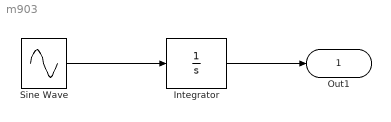
/*
 * m903.c
 * 
 * Real-Time Workshop code generation for Simulink model "m903.mdl".
 *
 * Model Version              : 1.8
 * Real-Time Workshop version : 6.1  (R14SP1)  05-Sep-2004
 * C source code generated on : Sat Apr 02 09:22:49 2005
 */

#include "m903.h"
#include "m903_private.h"

/* Block signals (auto storage) */
BlockIO_m903 m903_B;

/* Continuous states */
ContinuousStates_m903 m903_X;

/* External output (root outports fed by signals with auto storage) */
ExternalOutputs_m903 m903_Y;

/* Real-time model */
rtModel_m903 m903_M_;
rtModel_m903 *m903_M = &m903_M_;

/* This function implements a singletasking scheduler for a system with 2
 * rates.  This function is called by the generated step function, hence the
 * generated code self-manages all its subrates.
 */
static void rate_scheduler(void)
{

  /* Compute which subrates run during the next base time step.  Subrates
   * are an integer multiple of the base rate counter.  Therefore, the subtask
   * counter is reset when it reaches its limit (zero means run).
   */
}

/* This function updates continuous states using the ODE4 fixed-step
 * solver algorithm
 */
static void rt_ertODEUpdateContinuousStates(RTWSolverInfo *si , int_T tid)
{
  time_T t = rtsiGetT(si);
  time_T tnew = rtsiGetSolverStopTime(si);
  time_T h = rtsiGetStepSize(si);
  real_T *x = rtsiGetContStates(si);
  ODE4_IntgData *id = rtsiGetSolverData(si);
  real_T *y = id->y;
  real_T *f0 = id->f[0];
  real_T *f1 = id->f[1];
  real_T *f2 = id->f[2];
  real_T *f3 = id->f[3];
  real_T temp;
  int_T i;

  int_T nXc = 1;

  rtsiSetSimTimeStep(si,MINOR_TIME_STEP);

  /* Save the state values at time t in y, we'll use x as ynew. */
  (void)memcpy(y, x, nXc*sizeof(real_T));

  /* Assumes that rtsiSetT and ModelOutputs are up-to-date */
  /* f0 = f(t,y) */
  rtsiSetdX(si, f0);
  m903_derivatives();

  /* f1 = f(t + (h/2), y + (h/2)*f0) */
  temp = 0.5 * h;
  for (i = 0; i < nXc; i++) x[i] = y[i] + (temp*f0[i]);
  rtsiSetT(si, t + temp);
  rtsiSetdX(si, f1);
  m903_output(0);
  m903_derivatives();

  /* f2 = f(t + (h/2), y + (h/2)*f1) */
  for (i = 0; i < nXc; i++) x[i] = y[i] + (temp*f1[i]);
  rtsiSetdX(si, f2);
  m903_output(0);
  m903_derivatives();

  /* f3 = f(t + h, y + h*f2) */
  for (i = 0; i < nXc; i++) x[i] = y[i] + (h*f2[i]);
  rtsiSetT(si, tnew);
  rtsiSetdX(si, f3);
  m903_output(0);
  m903_derivatives();

  /* tnew = t + h
     ynew = y + (h/6)*(f0 + 2*f1 + 2*f2 + 2*f3) */
  temp = h / 6.0;
  for (i = 0; i < nXc; i++) {
    x[i] = y[i] + temp*(f0[i] + 2.0*f1[i] + 2.0*f2[i] + f3[i]);
  }

  rtsiSetSimTimeStep(si,MAJOR_TIME_STEP);
}

/* Model output function */
void m903_output(int_T tid)
{

  /* local block i/o variables */

  real_T rtb_Integrator;

  /* Update absolute time of base rate at minor time step */
  if (rtmIsMinorTimeStep(m903_M)) {
    m903_M->Timing.t[0] = rtsiGetT(&m903_M->solverInfo);
  }

  if (rtmIsMajorTimeStep(m903_M)) {
    /* set solver stop time */
    rtsiSetSolverStopTime(&m903_M->solverInfo,
     ((m903_M->Timing.clockTick0+1)*m903_M->Timing.stepSize0));
  }                                     /* end MajorTimeStep */

  /* Integrator: '<Root>/Integrator' */
  rtb_Integrator = m903_X.Integrator_CSTATE;

  /* Outport: '<Root>/Out1' */
  m903_Y.Out1 = rtb_Integrator;

  /* Sin: '<Root>/Sine Wave' */
  m903_B.SineWave = m903_P.SineWave_Amp *
    sin(m903_P.SineWave_Freq * m903_M->Timing.t[0] + m903_P.SineWave_Phase) +
    m903_P.SineWave_Bias;
}

/* Model update function */
void m903_update(int_T tid)
{

  if (rtmIsMajorTimeStep(m903_M)) {
    rt_ertODEUpdateContinuousStates(&m903_M->solverInfo, 0);
  }

  /* Update absolute time for base rate */

  if(!(++m903_M->Timing.clockTick0)) ++m903_M->Timing.clockTickH0;
  m903_M->Timing.t[0] = m903_M->Timing.clockTick0 * m903_M->Timing.stepSize0 +
    m903_M->Timing.clockTickH0 * m903_M->Timing.stepSize0 * 4294967296.0;

  if (rtmIsMajorTimeStep(m903_M) &&
   m903_M->Timing.TaskCounters.TID[1] == 0) {
    /* Update absolute timer for sample time: [0.1s, 0.0s] */

    if(!(++m903_M->Timing.clockTick1)) ++m903_M->Timing.clockTickH1;
    m903_M->Timing.t[1] = m903_M->Timing.clockTick1 * m903_M->Timing.stepSize1 +
      m903_M->Timing.clockTickH1 * m903_M->Timing.stepSize1 * 4294967296.0;
  }

  rate_scheduler();
}
